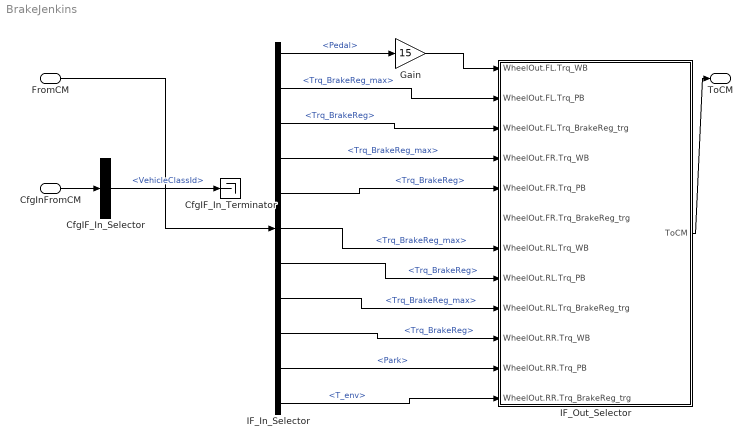
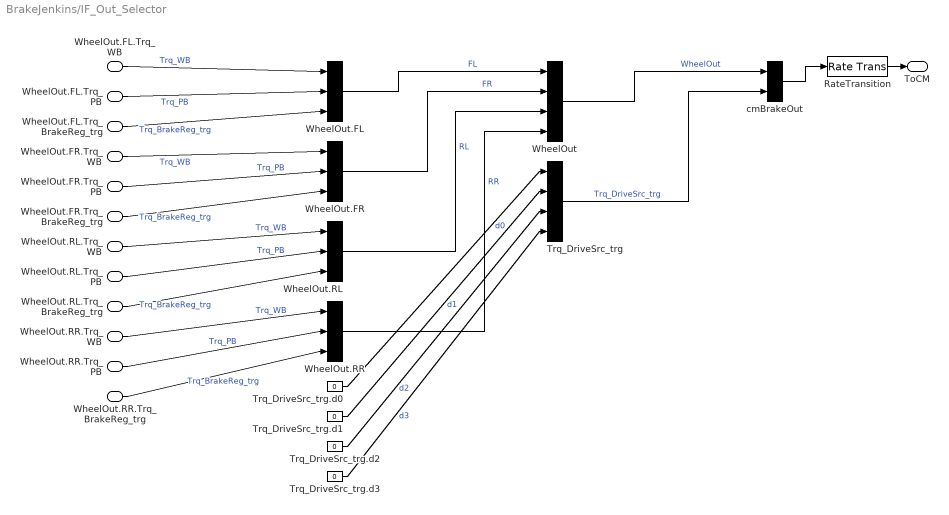
/*
 * BrakeJenkins.c
 *
 * Sponsored Third Party Support License -- for use only to support
 * products interfaced to MathWorks software under terms specified in your
 * company's restricted use license agreement.
 *
 * Code generation for model "BrakeJenkins".
 *
 * Model version              : 1.18
 * Simulink Coder version : 9.4 (R2020b) 29-Jul-2020
 * C source code generated on : Tue Apr 11 15:55:13 2023
 *
 * Target selection: CarMaker.tlc
 * Note: GRT includes extra infrastructure and instrumentation for prototyping
 * Embedded hardware selection: Intel->x86-64 (Windows64)
 * Code generation objectives: Unspecified
 * Validation result: Not run
 */

#include <infoc.h>
#include <Log.h>
#include <InfoParam.h>
#include <DataDict.h>
#include <MatSupp.h>
#include "BrakeJenkins.h"
#include "BrakeJenkins_private.h"
#include "BrakeJenkins_wrap.h"

/* CarMaker: Compile- and link-time checks for the right Matlab version. */
#if MATSUPP_NUMVER == 90900

/* The following statement will cause an "unresolved symbol" error when
   linking with a MatSupp library built for the wrong Matlab version. */
extern int MATSUPP_VARNAME(MatSupp, MATSUPP_NUMVER);
void *MATSUPP_VARNAME(MODEL, MATSUPP_NUMVER) = &MATSUPP_VARNAME(MatSupp,
  MATSUPP_NUMVER);

#else
# error Compiler options unsuitable for C code created with Matlab 9.9
#endif

const cmBrakeOut BrakeJenkins_rtZcmBrakeOut = {
  {
    {
      0.0,                             /* Trq_WB */
      0.0,                             /* Trq_PB */
      0.0                              /* Trq_BrakeReg_trg */
    },                                 /* FL */

    {
      0.0,                             /* Trq_WB */
      0.0,                             /* Trq_PB */
      0.0                              /* Trq_BrakeReg_trg */
    },                                 /* FR */

    {
      0.0,                             /* Trq_WB */
      0.0,                             /* Trq_PB */
      0.0                              /* Trq_BrakeReg_trg */
    },                                 /* RL */

    {
      0.0,                             /* Trq_WB */
      0.0,                             /* Trq_PB */
      0.0                              /* Trq_BrakeReg_trg */
    }                                  /* RR */
  },                                   /* WheelOut */

  {
    0.0,                               /* d0 */
    0.0,                               /* d1 */
    0.0,                               /* d2 */
    0.0                                /* d3 */
  }                                    /* Trq_DriveSrc_trg */
} ;                                    /* cmBrakeOut ground */

/* Block parameters (default storage) */
P_BrakeJenkins_T BrakeJenkins_P = {
  /* Expression: 15
   * Referenced by: '<Root>/Gain'
   */
  15.0,

  /* Expression: 0
   * Referenced by: '<S1>/Trq_DriveSrc_trg.d0'
   */
  0.0,

  /* Expression: 0
   * Referenced by: '<S1>/Trq_DriveSrc_trg.d1'
   */
  0.0,

  /* Expression: 0
   * Referenced by: '<S1>/Trq_DriveSrc_trg.d2'
   */
  0.0,

  /* Expression: 0
   * Referenced by: '<S1>/Trq_DriveSrc_trg.d3'
   */
  0.0
};

/* Model step function */
void BrakeJenkins_step(RT_MODEL_BrakeJenkins_T *const BrakeJenkins_M)
{
  ExtU_BrakeJenkins_T *BrakeJenkins_U = (ExtU_BrakeJenkins_T *)
    BrakeJenkins_M->inputs;
  ExtY_BrakeJenkins_T *BrakeJenkins_Y = (ExtY_BrakeJenkins_T *)
    BrakeJenkins_M->outputs;

  /* Gain: '<Root>/Gain' incorporates:
   *  Inport: '<Root>/FromCM'
   */
  BrakeJenkins_Y->ToCM.WheelOut.FL.Trq_WB = BrakeJenkins_P.Gain_Gain *
    BrakeJenkins_U->FromCM.Pedal;

  /* BusCreator generated from: '<Root>/ToCM' incorporates:
   *  Inport: '<Root>/FromCM'
   */
  BrakeJenkins_Y->ToCM.WheelOut.FL.Trq_PB =
    BrakeJenkins_U->FromCM.WheelIn.FL.Trq_BrakeReg_max;
  BrakeJenkins_Y->ToCM.WheelOut.FL.Trq_BrakeReg_trg =
    BrakeJenkins_U->FromCM.WheelIn.FL.Trq_BrakeReg;

  /* BusCreator generated from: '<Root>/ToCM' incorporates:
   *  Inport: '<Root>/FromCM'
   */
  BrakeJenkins_Y->ToCM.WheelOut.FR.Trq_WB =
    BrakeJenkins_U->FromCM.WheelIn.FR.Trq_BrakeReg_max;
  BrakeJenkins_Y->ToCM.WheelOut.FR.Trq_PB =
    BrakeJenkins_U->FromCM.WheelIn.FR.Trq_BrakeReg;
  BrakeJenkins_Y->ToCM.WheelOut.FR.Trq_BrakeReg_trg = 0.0;

  /* BusCreator generated from: '<Root>/ToCM' incorporates:
   *  Inport: '<Root>/FromCM'
   */
  BrakeJenkins_Y->ToCM.WheelOut.RL.Trq_WB =
    BrakeJenkins_U->FromCM.WheelIn.RL.Trq_BrakeReg_max;
  BrakeJenkins_Y->ToCM.WheelOut.RL.Trq_PB =
    BrakeJenkins_U->FromCM.WheelIn.RL.Trq_BrakeReg;
  BrakeJenkins_Y->ToCM.WheelOut.RL.Trq_BrakeReg_trg =
    BrakeJenkins_U->FromCM.WheelIn.RR.Trq_BrakeReg_max;

  /* BusCreator generated from: '<Root>/ToCM' incorporates:
   *  Inport: '<Root>/FromCM'
   */
  BrakeJenkins_Y->ToCM.WheelOut.RR.Trq_WB =
    BrakeJenkins_U->FromCM.WheelIn.RR.Trq_BrakeReg;
  BrakeJenkins_Y->ToCM.WheelOut.RR.Trq_PB = BrakeJenkins_U->FromCM.Park;
  BrakeJenkins_Y->ToCM.WheelOut.RR.Trq_BrakeReg_trg =
    BrakeJenkins_U->FromCM.T_env;

  /* BusCreator generated from: '<Root>/ToCM' incorporates:
   *  Constant: '<S1>/Trq_DriveSrc_trg.d0'
   *  Constant: '<S1>/Trq_DriveSrc_trg.d1'
   *  Constant: '<S1>/Trq_DriveSrc_trg.d2'
   *  Constant: '<S1>/Trq_DriveSrc_trg.d3'
   */
  BrakeJenkins_Y->ToCM.Trq_DriveSrc_trg.d0 =
    BrakeJenkins_P.Trq_DriveSrc_trgd0_Value;
  BrakeJenkins_Y->ToCM.Trq_DriveSrc_trg.d1 =
    BrakeJenkins_P.Trq_DriveSrc_trgd1_Value;
  BrakeJenkins_Y->ToCM.Trq_DriveSrc_trg.d2 =
    BrakeJenkins_P.Trq_DriveSrc_trgd2_Value;
  BrakeJenkins_Y->ToCM.Trq_DriveSrc_trg.d3 =
    BrakeJenkins_P.Trq_DriveSrc_trgd3_Value;
}
